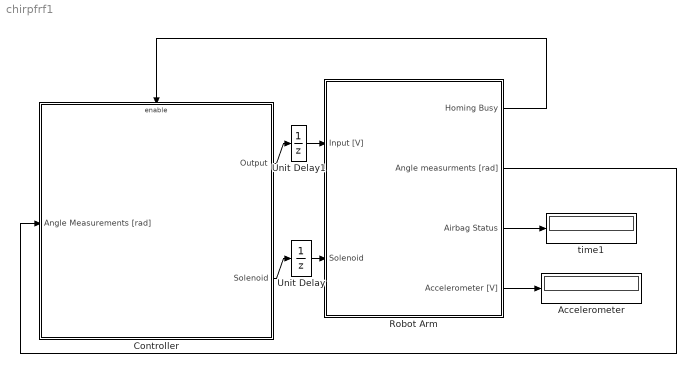
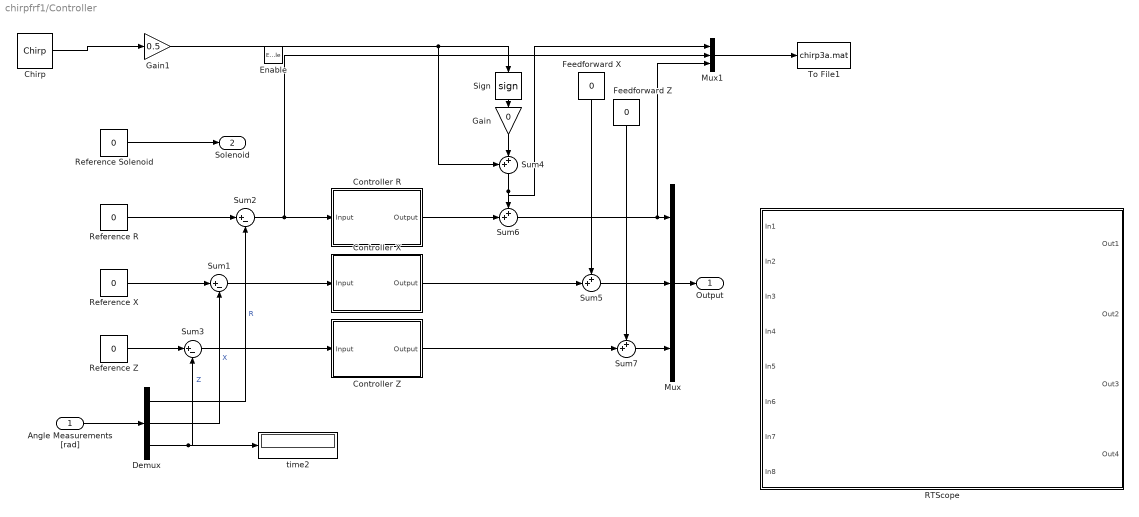
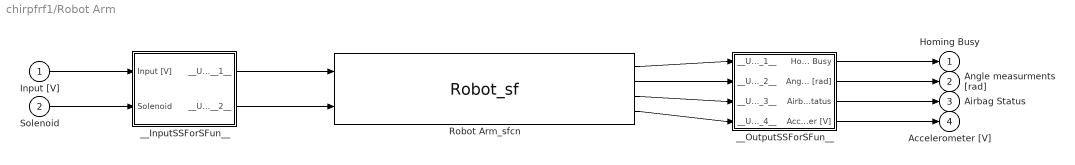
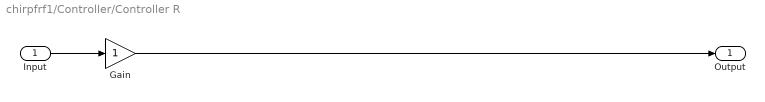
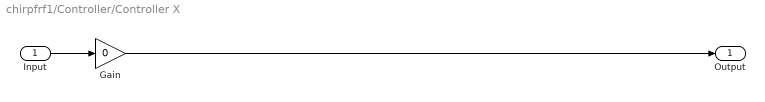
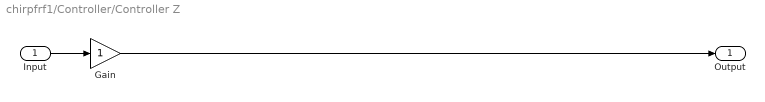
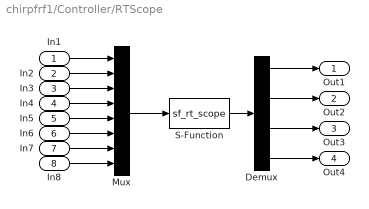
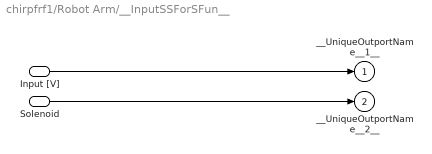
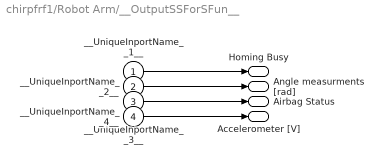
/*
 * chirpfrf1.c
 *
 * Code generation for model "chirpfrf1.mdl".
 *
 * Model version              : 1.912
 * Simulink Coder version : 8.1 (R2011b) 08-Jul-2011
 * C source code generated on : Sat Nov 28 12:39:21 2015
 *
 * Target selection: ectarget.tlc
 * Note: GRT includes extra infrastructure and instrumentation for prototyping
 * Embedded hardware selection: 32-bit Generic
 * Code generation objectives: Unspecified
 * Validation result: Not run
 */
#include "chirpfrf1.h"
#include "chirpfrf1_private.h"
#include "chirpfrf1_dt.h"
#undef S_FUNCTION_NAME
#if !defined(RTW_GENERATED_SFCN_TUNABLE_PRMS_Robot_sf)
#define RTW_GENERATED_SFCN_TUNABLE_PRMS_Robot_sf
#endif

#include "Robot_sf.h"

const real_T chirpfrf1_RGND = 0.0;     /* real_T ground */

/* Block signals (auto storage) */
BlockIO_chirpfrf1 chirpfrf1_B;

/* Block states (auto storage) */
D_Work_chirpfrf1 chirpfrf1_DWork;

/* Real-time model */
RT_MODEL_chirpfrf1 chirpfrf1_M_;
RT_MODEL_chirpfrf1 *const chirpfrf1_M = &chirpfrf1_M_;

/*
 * Writes out MAT-file header.  Returns success or failure.
 * Returns:
 *      0 - success
 *      1 - failure
 */
int_T rt_WriteMat4FileHeader(FILE *fp, int32_T m, int32_T n, const char *name)
{
  typedef enum { ELITTLE_ENDIAN, EBIG_ENDIAN } ByteOrder;

  int16_T one = 1;
  ByteOrder byteOrder = (*((int8_T *)&one)==1) ? ELITTLE_ENDIAN : EBIG_ENDIAN;
  int32_T type = (byteOrder == ELITTLE_ENDIAN) ? 0: 1000;
  int32_T imagf = 0;
  int32_T name_len = strlen(name) + 1;
  if ((fwrite(&type, sizeof(int32_T), 1, fp) == 0) ||
      (fwrite(&m, sizeof(int32_T), 1, fp) == 0) ||
      (fwrite(&n, sizeof(int32_T), 1, fp) == 0) ||
      (fwrite(&imagf, sizeof(int32_T), 1, fp) == 0) ||
      (fwrite(&name_len, sizeof(int32_T), 1, fp) == 0) ||
      (fwrite(name, sizeof(char), name_len, fp) == 0)) {
    return(1);
  } else {
    return(0);
  }
}                                      /* end rt_WriteMat4FileHeader */

/* Model output function */
void chirpfrf1_output(int_T tid)
{
  /* local block i/o variables */
  real_T rtb_Chirp;
  real_T rtb_TmpSignalConversionAtToFile[3];

  /* Reset subsysRan breadcrumbs */
  srClearBC(chirpfrf1_DWork.Controller_SubsysRanBC);

  /* UnitDelay: '<Root>/Unit Delay1' */
  /* RTWBLOCK_START_COMMENT */
  chirpfrf1_B.UnitDelay1[0] = chirpfrf1_DWork.UnitDelay1_DSTATE[0];
  chirpfrf1_B.UnitDelay1[1] = chirpfrf1_DWork.UnitDelay1_DSTATE[1];
  chirpfrf1_B.UnitDelay1[2] = chirpfrf1_DWork.UnitDelay1_DSTATE[2];

  /* UnitDelay: '<Root>/Unit Delay' */
  chirpfrf1_B.UnitDelay = chirpfrf1_DWork.UnitDelay_DSTATE;

  /* RTW Generated Level2 S-Function Block: '<S2>/Robot Arm_sfcn' (Robot_sf) */
  {
    SimStruct *rts = chirpfrf1_M->childSfunctions[1];
    sfcnOutputs(rts, 0);
  }

  /* Outputs for Enabled SubSystem: '<Root>/Controller' incorporates:
   *  EnablePort: '<S1>/Enable'
   */
  if (chirpfrf1_B.RobotArm_sfcn_o1 > 0.0) {
    if (!chirpfrf1_DWork.Controller_MODE) {
      chirpfrf1_DWork.Controller_MODE = TRUE;
    }
  } else {
    if (chirpfrf1_DWork.Controller_MODE) {
      chirpfrf1_DWork.Controller_MODE = FALSE;
    }
  }

  if (chirpfrf1_DWork.Controller_MODE) {
    /* DSP System Toolbox Chirp (sdspchirp) - '<S1>/Chirp' */
    /* Unidirectional Logarithmic  */
    {
      real_T *y = &rtb_Chirp;
      real_T instantPhase = 0.0;
      instantPhase = (chirpfrf1_DWork.Chirp_SWEEP_DIRECTION == 0) ?
        chirpfrf1_DWork.Chirp_BETA*chirpfrf1_P.Chirp_INITIAL_FREQ*(pow
        (chirpfrf1_DWork.Chirp_MIN_FREQ,chirpfrf1_DWork.Chirp_CURRENT_STEP /
         chirpfrf1_P.Chirp_TIME_TARGET) - 1.0) :
        chirpfrf1_DWork.Chirp_PERIOD_THETA - chirpfrf1_DWork.Chirp_BETA*
        chirpfrf1_P.Chirp_INITIAL_FREQ*(pow(chirpfrf1_DWork.Chirp_MIN_FREQ,
        (chirpfrf1_P.Chirp_PERIOD_SWEEP-chirpfrf1_DWork.Chirp_CURRENT_STEP) /
        chirpfrf1_P.Chirp_TIME_TARGET) - 1.0);
      instantPhase -= (int_T)instantPhase;
      *y = cos(DSP_TWO_PI * (instantPhase + chirpfrf1_DWork.Chirp_ACC_PHASE) +
               chirpfrf1_P.Chirp_PHASE);
      chirpfrf1_DWork.Chirp_CURRENT_STEP += 0.000244140625;/* Go to next time step */
      if (chirpfrf1_DWork.Chirp_CURRENT_STEP > (chirpfrf1_P.Chirp_PERIOD_SWEEP +
           DBL_EPSILON)) {
        chirpfrf1_DWork.Chirp_CURRENT_STEP = chirpfrf1_DWork.Chirp_CURRENT_STEP
          - chirpfrf1_P.Chirp_PERIOD_SWEEP;
        chirpfrf1_DWork.Chirp_ACC_PHASE += instantPhase;
        while (chirpfrf1_DWork.Chirp_ACC_PHASE > 1.0) {
          chirpfrf1_DWork.Chirp_ACC_PHASE -= 1.0;
        }
      }
    }

    /* Gain: '<S1>/Gain1' */
    chirpfrf1_B.Gain1 = chirpfrf1_P.Gain1_Gain * rtb_Chirp;

    /* Sum: '<S1>/Sum2' incorporates:
     *  Constant: '<S1>/Reference R'
     */
    chirpfrf1_B.Sum2 = chirpfrf1_P.ReferenceR_Value -
      chirpfrf1_B.RobotArm_sfcn_o2[0];

    /* Sum: '<S1>/Sum6' incorporates:
     *  Gain: '<S3>/Gain'
     */
    chirpfrf1_B.Sum6 = chirpfrf1_P.Gain_Gain * chirpfrf1_B.Sum2 +
      chirpfrf1_B.Gain1;

    /* SignalConversion: '<S1>/TmpSignal ConversionAtTo File1Inport1' */
    rtb_TmpSignalConversionAtToFile[0] = chirpfrf1_B.Gain1;
    rtb_TmpSignalConversionAtToFile[1] = chirpfrf1_B.Sum2;
    rtb_TmpSignalConversionAtToFile[2] = chirpfrf1_B.Sum6;

    /* ToFile: '<S1>/To File1' */
    if (!(++chirpfrf1_DWork.ToFile1_IWORK.Decimation % 1) &&
        (chirpfrf1_DWork.ToFile1_IWORK.Count*4)+1 < 100000000 ) {
      FILE *fp = (FILE *) chirpfrf1_DWork.ToFile1_PWORK.FilePtr;
      if (fp != (NULL)) {
        real_T u[4];
        chirpfrf1_DWork.ToFile1_IWORK.Decimation = 0;
        u[0] = chirpfrf1_M->Timing.t[1];
        u[1] = rtb_TmpSignalConversionAtToFile[0];
        u[2] = rtb_TmpSignalConversionAtToFile[1];
        u[3] = rtb_TmpSignalConversionAtToFile[2];
        if (fwrite(u, sizeof(real_T), 4, fp) != 4) {
          rtmSetErrorStatus(chirpfrf1_M, "Error writing to MAT-file chirp9.mat");
          return;
        }

        if (((++chirpfrf1_DWork.ToFile1_IWORK.Count)*4)+1 >= 100000000) {
          (void)fprintf(stdout,
                        "*** The ToFile block will stop logging data before\n"
                        "    the simulation has ended, because it has reached\n"
                        "    the maximum number of elements (100000000)\n"
                        "    allowed in MAT-file chirp9.mat.\n");
        }
      }
    }

    /* Sum: '<S1>/Sum5' incorporates:
     *  Constant: '<S1>/Feedforward X'
     *  Constant: '<S1>/Reference X'
     *  Gain: '<S4>/Gain'
     *  Sum: '<S1>/Sum1'
     */
    chirpfrf1_B.Sum5 = (chirpfrf1_P.ReferenceX_Value -
                        chirpfrf1_B.RobotArm_sfcn_o2[1]) *
      chirpfrf1_P.Gain_Gain_i + chirpfrf1_P.FeedforwardX_Value;

    /* Sum: '<S1>/Sum7' incorporates:
     *  Constant: '<S1>/Feedforward Z'
     *  Constant: '<S1>/Reference Z'
     *  Gain: '<S5>/Gain'
     *  Sum: '<S1>/Sum3'
     */
    chirpfrf1_B.Sum7 = (chirpfrf1_P.ReferenceZ_Value -
                        chirpfrf1_B.RobotArm_sfcn_o2[2]) *
      chirpfrf1_P.Gain_Gain_c + chirpfrf1_P.FeedforwardZ_Value;

    /* Constant: '<S1>/Reference Solenoid' */
    chirpfrf1_B.ReferenceSolenoid = chirpfrf1_P.ReferenceSolenoid_Value;

    /* Level2 S-Function Block: '<S6>/S-Function' (sf_rt_scope) */
    {
      SimStruct *rts = chirpfrf1_M->childSfunctions[0];
      sfcnOutputs(rts, 0);
    }

    srUpdateBC(chirpfrf1_DWork.Controller_SubsysRanBC);
  }

  /* End of Outputs for SubSystem: '<Root>/Controller' */

  /* tid is required for a uniform function interface.
   * Argument tid is not used in the function. */
  UNUSED_PARAMETER(tid);
}

/* Model update function */
void chirpfrf1_update(int_T tid)
{
  /* Update for UnitDelay: '<Root>/Unit Delay1' */
  chirpfrf1_DWork.UnitDelay1_DSTATE[0] = chirpfrf1_B.Sum6;
  chirpfrf1_DWork.UnitDelay1_DSTATE[1] = chirpfrf1_B.Sum5;
  chirpfrf1_DWork.UnitDelay1_DSTATE[2] = chirpfrf1_B.Sum7;

  /* Update for UnitDelay: '<Root>/Unit Delay' */
  chirpfrf1_DWork.UnitDelay_DSTATE = chirpfrf1_B.ReferenceSolenoid;

  /* RTW Generated Level2 S-Function Block: '<S2>/Robot Arm_sfcn' (Robot_sf) */
  {
    SimStruct *rts = chirpfrf1_M->childSfunctions[1];
    sfcnUpdate(rts, 0);
    if (ssGetErrorStatus(rts) != (NULL))
      return;
  }

  /* Update absolute time for base rate */
  /* The "clockTick0" counts the number of times the code of this task has
   * been executed. The absolute time is the multiplication of "clockTick0"
   * and "Timing.stepSize0". Size of "clockTick0" ensures timer will not
   * overflow during the application lifespan selected.
   * Timer of this task consists of two 32 bit unsigned integers.
   * The two integers represent the low bits Timing.clockTick0 and the high bits
   * Timing.clockTickH0. When the low bit overflows to 0, the high bits increment.
   */
  if (!(++chirpfrf1_M->Timing.clockTick0)) {
    ++chirpfrf1_M->Timing.clockTickH0;
  }

  chirpfrf1_M->Timing.t[0] = chirpfrf1_M->Timing.clockTick0 *
    chirpfrf1_M->Timing.stepSize0 + chirpfrf1_M->Timing.clockTickH0 *
    chirpfrf1_M->Timing.stepSize0 * 4294967296.0;

  {
    /* Update absolute timer for sample time: [0.000244140625s, 0.0s] */
    /* The "clockTick1" counts the number of times the code of this task has
     * been executed. The absolute time is the multiplication of "clockTick1"
     * and "Timing.stepSize1". Size of "clockTick1" ensures timer will not
     * overflow during the application lifespan selected.
     * Timer of this task consists of two 32 bit unsigned integers.
     * The two integers represent the low bits Timing.clockTick1 and the high bits
     * Timing.clockTickH1. When the low bit overflows to 0, the high bits increment.
     */
    if (!(++chirpfrf1_M->Timing.clockTick1)) {
      ++chirpfrf1_M->Timing.clockTickH1;
    }

    chirpfrf1_M->Timing.t[1] = chirpfrf1_M->Timing.clockTick1 *
      chirpfrf1_M->Timing.stepSize1 + chirpfrf1_M->Timing.clockTickH1 *
      chirpfrf1_M->Timing.stepSize1 * 4294967296.0;
  }

  /* tid is required for a uniform function interface.
   * Argument tid is not used in the function. */
  UNUSED_PARAMETER(tid);
}
